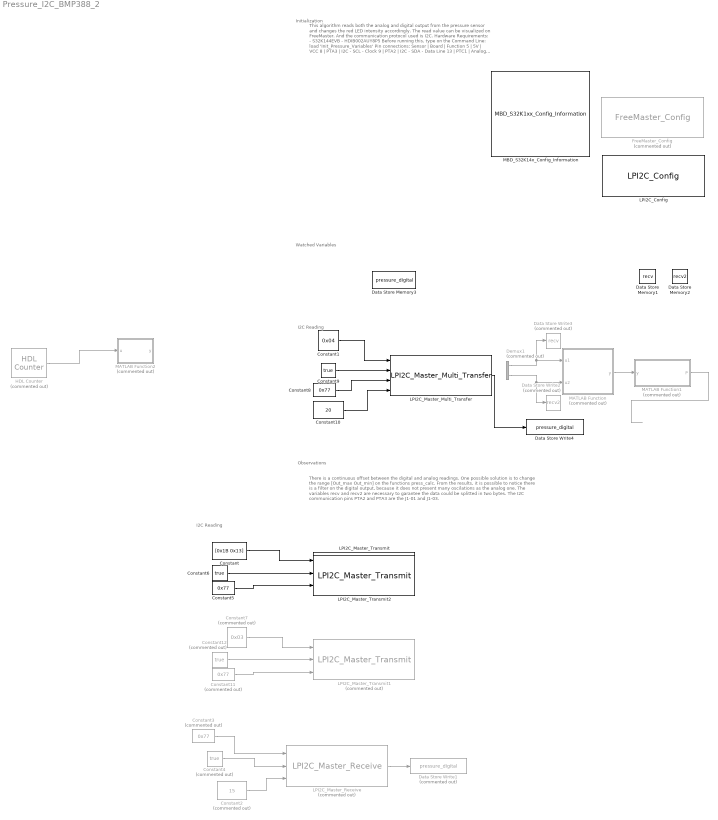
== matlab function Pressure_I2C_BMP388_2/MATLAB Function1 ==
function P = press_calc_dig (y)
% Calculate the corresponding pressure based on the digital reading


%Pressure range
Pmax = 2000; %mbar
Pmin = 0;

%Digital range
Out_max_d = 29490;
Out_min_d = 3277;

S = (Out_max_d - Out_min_d)/(Pmax-Pmin);
P = (y - Out_min_d)/S + Pmin;

== matlab function Pressure_I2C_BMP388_2/MATLAB Function ==
function y  = data_mask(u1, u2)


u = [u1 u2];

u_bin_mat = int2bit(u, 8);
u_bin_vec = (reshape(u_bin_mat, 1, []))';

y= bit2int(u_bin_vec, 16);

== matlab function Pressure_I2C_BMP388_2/MATLAB Function2 ==
function y = fcn(u)
y = 0x1B;

if (u>1)
    y = 0x03;
end

/*
 * Academic License - for use in teaching, academic research, and meeting
 * course requirements at degree granting institutions only.  Not for
 * government, commercial, or other organizational use.
 *
 * File: Pressure_I2C_BMP388_2.c
 *
 * Code generated for Simulink model 'Pressure_I2C_BMP388_2'.
 *
 * Model version                  : 1.183
 * Simulink Coder version         : 9.8 (R2022b) 13-May-2022
 * C/C++ source code generated on : Mon Apr  3 12:42:45 2023
 *
 * Target selection: mbd_s32k.tlc
 * Embedded hardware selection: ARM Compatible->ARM Cortex
 * Code generation objectives: Unspecified
 * Validation result: Not run
 */

#include "Pressure_I2C_BMP388_2.h"
#include "rtwtypes.h"
#include "Pressure_I2C_BMP388_2_private.h"

lpi2c_master_state_t lpi2cMasterState0;
void lpi2c_MasterCallback(i2c_master_event_t masterEvent, void *userData)
  __attribute__((weak));
const uint8_T Pressure_I2C_BMP388_2_U8GND = 0U;/* uint8_T ground */

/* Exported block states */
uint8_T pressure_digital[7];           /* '<Root>/Data Store Memory3' */

/* Block signals (default storage) */
B_Pressure_I2C_BMP388_2_T Pressure_I2C_BMP388_2_B;

/* Block states (default storage) */
DW_Pressure_I2C_BMP388_2_T Pressure_I2C_BMP388_2_DW;

/* Real-time model */
static RT_MODEL_Pressure_I2C_BMP388__T Pressure_I2C_BMP388_2_M_;
RT_MODEL_Pressure_I2C_BMP388__T *const Pressure_I2C_BMP388_2_M =
  &Pressure_I2C_BMP388_2_M_;
void LPI2C_DRV_SetSlaveAddr(uint16_t addr, bool is10BitAddr)
{
  LPI2C_Type *baseAddr = LPI2C0;
  LPI2C_Set_SlaveAddr0(baseAddr, addr);
  if (is10BitAddr) {
    LPI2C_Set_SlaveAddrConfig(baseAddr, LPI2C_SLAVE_ADDR_MATCH_0_10BIT);
  } else {
    LPI2C_Set_SlaveAddrConfig(baseAddr, LPI2C_SLAVE_ADDR_MATCH_0_7BIT);
  }
}

/* Model step function */
void Pressure_I2C_BMP388_2_step(void)
{
  int32_T i;

  /* S-Function (lpi2c_s32k_master_transmit): '<Root>/LPI2C_Master_Transmit' incorporates:
   *  Constant: '<Root>/Constant'
   *  Constant: '<Root>/Constant5'
   *  Constant: '<Root>/Constant6'
   */
  {
    bool is10bitAddr = false;

    /* Set slave address and then send data to that slave */
    LPI2C_DRV_MasterSetSlaveAddr(0U, ((uint16_T)119U), is10bitAddr);
    LPI2C_DRV_MasterSendDataBlocking(0U,
      Pressure_I2C_BMP388_2_ConstP.Constant_Value, 2, true, 50U);
  }

  /* S-Function (lpi2c_s32k_master_transmit): '<Root>/LPI2C_Master_Transmit2' */
  {
    bool is10bitAddr = false;

    /* Set slave address and then send data to that slave */
    LPI2C_DRV_MasterSetSlaveAddr(0U, 0U, is10bitAddr);
    LPI2C_DRV_MasterSendDataBlocking(0U, ((const uint8_T*)
      &Pressure_I2C_BMP388_2_U8GND), 1, false, 50U);
  }

  /* S-Function (lpi2c_s32k_master_multi_transfer): '<Root>/LPI2C_Master_Multi_Transfer' incorporates:
   *  Constant: '<Root>/Constant1'
   *  Constant: '<Root>/Constant10'
   *  Constant: '<Root>/Constant8'
   *  Constant: '<Root>/Constant9'
   */
  {
    bool is10bitAddr = false;

    /* Set slave address and then send data (register address / command to that slave */
    LPI2C_DRV_MasterSetSlaveAddr(0U, ((uint16_T)119U), is10bitAddr);
    LPI2C_DRV_MasterSendDataBlocking(0U,
      &Pressure_I2C_BMP388_2_ConstP.Constant1_Value, 1, true, 50U);

    /* Insert delay for slave to get data ready */
    OSIF_TimeDelay(50U);

    /* Read data from slave */
    LPI2C_DRV_MasterReceiveDataBlocking(0U,
      &Pressure_I2C_BMP388_2_B.LPI2C_Master_Multi_Transfer[0], 7, true, 50U);
  }

  /* DataStoreWrite: '<Root>/Data Store Write4' */
  for (i = 0; i < 7; i++) {
    pressure_digital[i] = Pressure_I2C_BMP388_2_B.LPI2C_Master_Multi_Transfer[i];
  }

  /* End of DataStoreWrite: '<Root>/Data Store Write4' */
}
